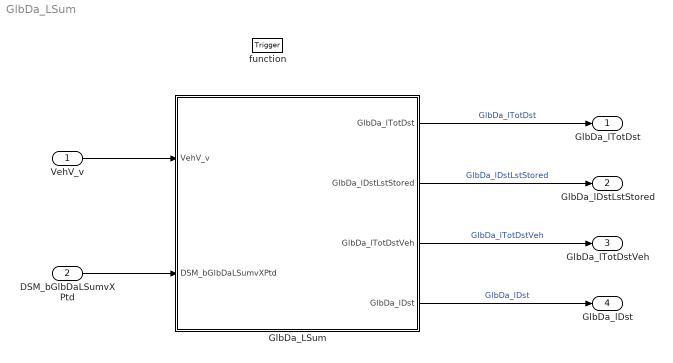
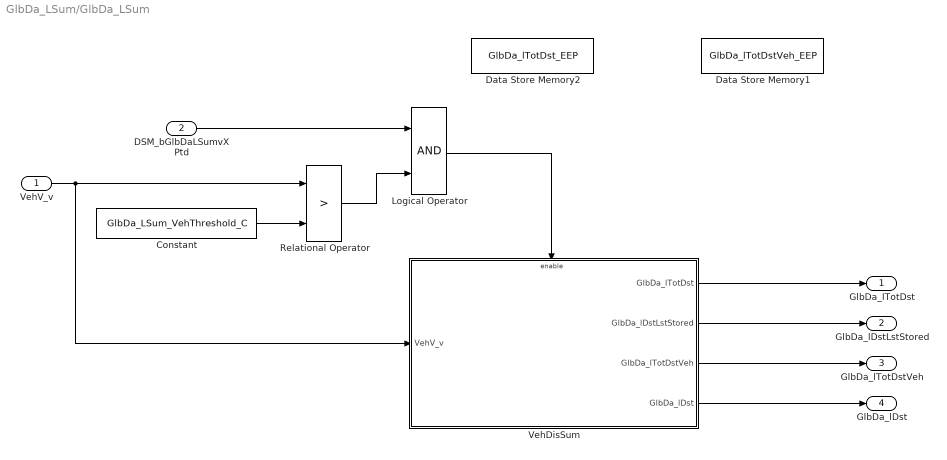
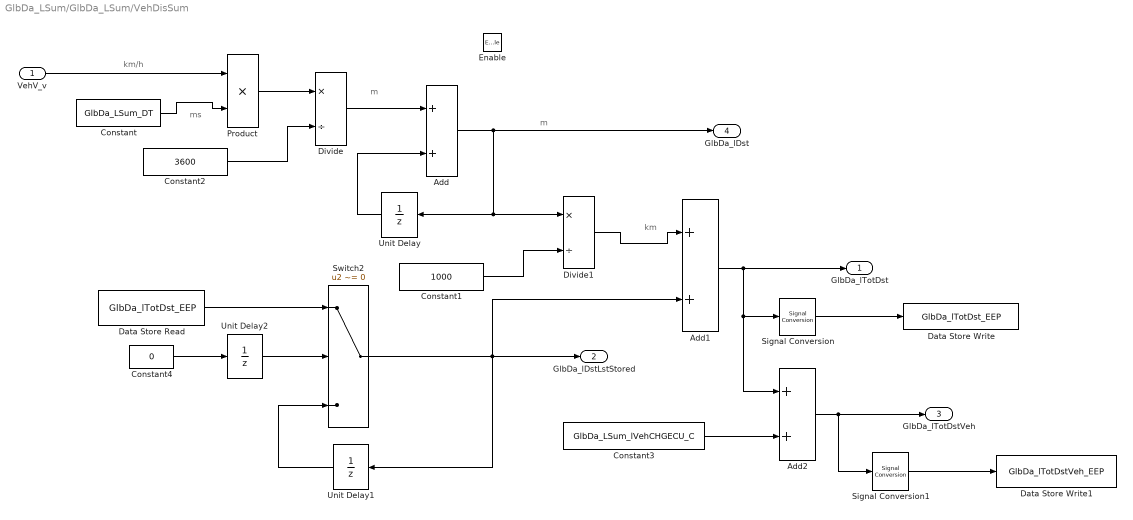
/*
 * File: GlbDa_LSum.c
 *
 * Code generated for Simulink model 'GlbDa_LSum'.
 *
 * Model version                  : 1.22
 * Simulink Coder version         : 8.11 (R2016b) 25-Aug-2016
 * C/C++ source code generated on : Wed Jul 15 08:56:07 2020
 *
 * Target selection: ert.tlc
 * Embedded hardware selection: Freescale->32-bit PowerPC
 * Code generation objective: Execution efficiency
 * Validation result: Not run
 */

#include "GlbDa_LSum.h"
#include "GlbDa_LSum_private.h"

/* Exported block signals */
Length_m GlbDa_lDst;                   /* '<S2>/Add' */
Length_Km GlbDa_lDstLstStored;         /* '<S2>/Switch2' */
Length_Km GlbDa_lTotDst;               /* '<S2>/Add1' */
Length_Km GlbDa_lTotDstVeh;            /* '<S2>/Add2' */

/* Block states (auto storage) */
DW_GlbDa_LSum_T GlbDa_LSum_DW;

/* External inputs (root inport signals with auto storage) */
ExtU_GlbDa_LSum_T GlbDa_LSum_U;
void mul_wide_s32(int32_T in0, int32_T in1, uint32_T *ptrOutBitsHi, uint32_T
                  *ptrOutBitsLo)
{
  uint32_T absIn0;
  uint32_T absIn1;
  uint32_T in0Lo;
  uint32_T in0Hi;
  uint32_T in1Hi;
  uint32_T productHiLo;
  uint32_T productLoHi;
  absIn0 = in0 < 0 ? ~(uint32_T)in0 + 1U : (uint32_T)in0;
  absIn1 = in1 < 0 ? ~(uint32_T)in1 + 1U : (uint32_T)in1;
  in0Hi = absIn0 >> 16U;
  in0Lo = absIn0 & 65535U;
  in1Hi = absIn1 >> 16U;
  absIn0 = absIn1 & 65535U;
  productHiLo = in0Hi * absIn0;
  productLoHi = in0Lo * in1Hi;
  absIn0 *= in0Lo;
  absIn1 = 0U;
  in0Lo = (productLoHi << 16U) + absIn0;
  if (in0Lo < absIn0) {
    absIn1 = 1U;
  }

  absIn0 = in0Lo;
  in0Lo += productHiLo << 16U;
  if (in0Lo < absIn0) {
    absIn1++;
  }

  absIn0 = (((productLoHi >> 16U) + (productHiLo >> 16U)) + in0Hi * in1Hi) +
    absIn1;
  if (!((in0 == 0) || ((in1 == 0) || ((in0 > 0) == (in1 > 0))))) {
    absIn0 = ~absIn0;
    in0Lo = ~in0Lo;
    in0Lo++;
    if (in0Lo == 0U) {
      absIn0++;
    }
  }

  *ptrOutBitsHi = absIn0;
  *ptrOutBitsLo = in0Lo;
}

int32_T mul_s32_loSR(int32_T a, int32_T b, uint32_T aShift)
{
  uint32_T u32_chi;
  uint32_T u32_clo;
  mul_wide_s32(a, b, &u32_chi, &u32_clo);
  u32_clo = u32_chi << (32U - aShift) | u32_clo >> aShift;
  return (int32_T)u32_clo;
}

int32_T div_repeat_s32_floor(int32_T numerator, int32_T denominator, uint32_T
  nRepeatSub)
{
  int32_T quotient;
  uint32_T absNumerator;
  uint32_T absDenominator;
  if (denominator == 0) {
    quotient = numerator >= 0 ? MAX_int32_T : MIN_int32_T;

    /* Divide by zero handler */
  } else {
    absNumerator = numerator < 0 ? ~(uint32_T)numerator + 1U : (uint32_T)
      numerator;
    absDenominator = denominator < 0 ? ~(uint32_T)denominator + 1U : (uint32_T)
      denominator;
    if ((numerator < 0) != (denominator < 0)) {
      quotient = -(int32_T)div_nzp_repeat_u32_ceiling(absNumerator,
        absDenominator, nRepeatSub);
    } else {
      quotient = (int32_T)div_nzp_repeat_u32(absNumerator, absDenominator,
        nRepeatSub);
    }
  }

  return quotient;
}

uint32_T div_nzp_repeat_u32_ceiling(uint32_T numerator, uint32_T denominator,
  uint32_T nRepeatSub)
{
  uint32_T quotient;
  uint32_T iRepeatSub;
  boolean_T numeratorExtraBit;
  quotient = numerator / denominator;
  numerator %= denominator;
  for (iRepeatSub = 0U; iRepeatSub < nRepeatSub; iRepeatSub++) {
    numeratorExtraBit = (numerator >= 2147483648U);
    numerator <<= 1U;
    quotient <<= 1U;
    if (numeratorExtraBit || (numerator >= denominator)) {
      quotient++;
      numerator -= denominator;
    }
  }

  if (numerator > 0U) {
    quotient++;
  }

  return quotient;
}

uint32_T div_nzp_repeat_u32(uint32_T numerator, uint32_T denominator, uint32_T
  nRepeatSub)
{
  uint32_T quotient;
  uint32_T iRepeatSub;
  boolean_T numeratorExtraBit;
  quotient = numerator / denominator;
  numerator %= denominator;
  for (iRepeatSub = 0U; iRepeatSub < nRepeatSub; iRepeatSub++) {
    numeratorExtraBit = (numerator >= 2147483648U);
    numerator <<= 1U;
    quotient <<= 1U;
    if (numeratorExtraBit || (numerator >= denominator)) {
      quotient++;
      numerator -= denominator;
    }
  }

  return quotient;
}

int32_T mul_s32_hiSR(int32_T a, int32_T b, uint32_T aShift)
{
  uint32_T u32_chi;
  uint32_T u32_clo;
  mul_wide_s32(a, b, &u32_chi, &u32_clo);
  return (int32_T)u32_chi >> aShift;
}

int32_T div_nde_s32_floor(int32_T numerator, int32_T denominator)
{
  return (((numerator < 0) != (denominator < 0)) && (numerator % denominator !=
           0) ? -1 : 0) + numerator / denominator;
}

/* Model step function */
void GlbDa_LSum_step(void)
{
  /* Outputs for Enabled SubSystem: '<S1>/VehDisSum' incorporates:
   *  EnablePort: '<S2>/Enable'
   */
  /* Logic: '<S1>/Logical Operator' incorporates:
   *  Constant: '<S1>/Constant'
   *  Inport: '<Root>/DSM_bGlbDaLSumvXPtd'
   *  Inport: '<Root>/VehV_v'
   *  RelationalOperator: '<S1>/Relational Operator'
   */
  if (GlbDa_LSum_U.DSM_bGlbDaLSumvXPtd && (GlbDa_LSum_U.VehV_v >
       GlbDa_LSum_VehThreshold_C)) {
    /* Sum: '<S2>/Add' incorporates:
     *  Product: '<S2>/Divide'
     *  Product: '<S2>/Product'
     *  UnitDelay: '<S2>/Unit Delay'
     */
    GlbDa_lDst += mul_s32_hiSR(div_nde_s32_floor(GlbDa_LSum_U.VehV_v * 1000 * 10,
      3600), 274877907, 6U);

    /* Switch: '<S2>/Switch2' incorporates:
     *  DataStoreRead: '<S2>/Data Store Read'
     *  UnitDelay: '<S2>/Unit Delay2'
     */
    if (GlbDa_LSum_DW.UnitDelay2_DSTATE) {
      GlbDa_lDstLstStored = GlbDa_lTotDst_EEP;
    }

    /* End of Switch: '<S2>/Switch2' */

    /* Sum: '<S2>/Add1' incorporates:
     *  Product: '<S2>/Divide1'
     */
    GlbDa_lTotDst = mul_s32_loSR(div_repeat_s32_floor(GlbDa_lDst, 125, 6U), 125,
      6U) + GlbDa_lDstLstStored;

    /* DataStoreWrite: '<S2>/Data Store Write' */
    GlbDa_lTotDst_EEP = GlbDa_lTotDst;

    /* Sum: '<S2>/Add2' incorporates:
     *  Constant: '<S2>/Constant3'
     */
    GlbDa_lTotDstVeh = GlbDa_lTotDst + GlbDa_LSum_lVehCHGECU_C;

    /* DataStoreWrite: '<S2>/Data Store Write1' */
    GlbDa_lTotDstVeh_EEP = GlbDa_lTotDstVeh;

    /* Update for UnitDelay: '<S2>/Unit Delay2' incorporates:
     *  Constant: '<S2>/Constant4'
     */
    GlbDa_LSum_DW.UnitDelay2_DSTATE = false;
  }

  /* End of Logic: '<S1>/Logical Operator' */
  /* End of Outputs for SubSystem: '<S1>/VehDisSum' */
}
